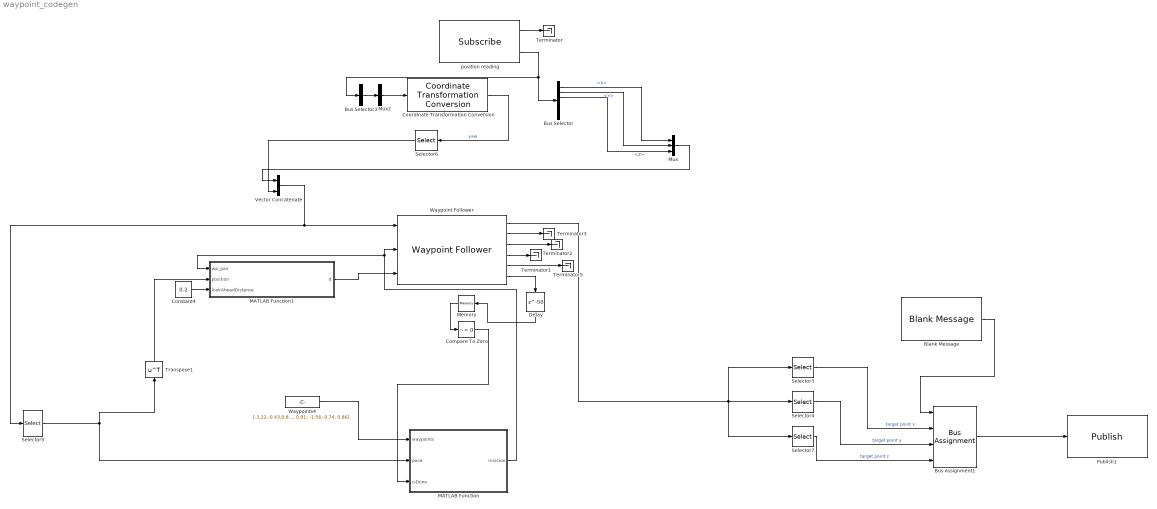
== matlab function waypoint_codegen/MATLAB Function1 ==
function d = decayDebug(wp_pair, position, lookAheadDistance)
%#codegen
prevWP = wp_pair(1,:);
nextWP = wp_pair(2,:);

distToStart = norm(position - prevWP);
distToEnd   = norm(position - nextWP);


x = min(distToStart, distToEnd);

if x <= lookAheadDistance
    d = x + 0.02;
else
    d = lookAheadDistance;



end






end

== matlab function waypoint_codegen/MATLAB Function ==
% MATLAB Function Block: generateMission
% Inputs:
%   waypoints   - Nx3 matrix of [x y z] waypoints
%   pose        - 1x3 current [x y z] position
%   isDone      - scalar (0 or 1), indicates waypoint reached
% Output:
%   mission     - 2x3 matrix: [previous_wp; target_wp]

function mission = generateMission(waypoints, pose, isDone)
%#codegen
% Preallocate output for codegen
mission = zeros(2,3,'like',waypoints);

persistent idx prevWP prevDone nWPs

% Initialize or reset on waypoint count change
if isempty(nWPs)
    nWPs = size(waypoints,1);
end
if isempty(idx) || nWPs ~= size(waypoints,1)
    idx      = 1;
    prevWP   = pose;       % start from initial pose
    prevDone = false;
    nWPs     = size(waypoints,1);
end

% Detect rising edge of isDone
if isDone && ~prevDone

    % Advance previous to current target
    prevWP = waypoints(idx, :);
    % Increment index, cap at end
    idx = min(idx + 1, nWPs);
end
% Store current isDone state
prevDone = isDone;

% Output previous and current target waypoints
mission(1, :) = prevWP;
mission(2, :) = waypoints(idx, :);
end

/*
 * waypoint_codegen.cpp
 *
 * Academic License - for use in teaching, academic research, and meeting
 * course requirements at degree granting institutions only.  Not for
 * government, commercial, or other organizational use.
 *
 * Code generation for model "waypoint_codegen".
 *
 * Model version              : 1.40
 * Simulink Coder version : 24.2 (R2024b) 21-Jun-2024
 * C++ source code generated on : Fri Sep  5 01:01:11 2025
 *
 * Target selection: ert.tlc
 * Note: GRT includes extra infrastructure and instrumentation for prototyping
 * Embedded hardware selection: Generic->Unspecified (assume 32-bit Generic)
 * Code generation objectives: Unspecified
 * Validation result: Not run
 */

#include "waypoint_codegen.h"
#include "rtwtypes.h"
#include <cstring>
#include <cmath>
#include "waypoint_codegen_private.h"
#include "cmath"
#include "rt_defines.h"

/* Block signals (default storage) */
B_waypoint_codegen_T waypoint_codegen_B;

/* Block states (default storage) */
DW_waypoint_codegen_T waypoint_codegen_DW;

/* Real-time model */
RT_MODEL_waypoint_codegen_T waypoint_codegen_M_{ };

RT_MODEL_waypoint_codegen_T *const waypoint_codegen_M{ &waypoint_codegen_M_ };

/* Forward declaration for local functions */
static real_T waypoint_codegen_norm(const real_T x[3]);
static real_T waypoint_codegen_norm_n(const real_T x[3]);
int32_T div_nzp_s32_floor(int32_T numerator, int32_T denominator)
{
  uint32_T absDenominator;
  uint32_T absNumerator;
  uint32_T tempAbsQuotient;
  boolean_T quotientNeedsNegation;
  absNumerator = numerator < 0 ? ~static_cast<uint32_T>(numerator) + 1U :
    static_cast<uint32_T>(numerator);
  absDenominator = denominator < 0 ? ~static_cast<uint32_T>(denominator) + 1U :
    static_cast<uint32_T>(denominator);
  quotientNeedsNegation = ((numerator < 0) != (denominator < 0));
  tempAbsQuotient = absNumerator / absDenominator;
  if (quotientNeedsNegation) {
    absNumerator %= absDenominator;
    if (absNumerator > 0U) {
      tempAbsQuotient++;
    }
  }

  return quotientNeedsNegation ? -static_cast<int32_T>(tempAbsQuotient) :
    static_cast<int32_T>(tempAbsQuotient);
}

real_T rt_atan2d_snf(real_T u0, real_T u1)
{
  real_T y;
  if (std::isnan(u0) || std::isnan(u1)) {
    y = (rtNaN);
  } else if (std::isinf(u0) && std::isinf(u1)) {
    int32_T tmp;
    int32_T tmp_0;
    if (u0 > 0.0) {
      tmp = 1;
    } else {
      tmp = -1;
    }

    if (u1 > 0.0) {
      tmp_0 = 1;
    } else {
      tmp_0 = -1;
    }

    y = std::atan2(static_cast<real_T>(tmp), static_cast<real_T>(tmp_0));
  } else if (u1 == 0.0) {
    if (u0 > 0.0) {
      y = RT_PI / 2.0;
    } else if (u0 < 0.0) {
      y = -(RT_PI / 2.0);
    } else {
      y = 0.0;
    }
  } else {
    y = std::atan2(u0, u1);
  }

  return y;
}

/* Function for MATLAB Function: '<Root>/MATLAB Function1' */
static real_T waypoint_codegen_norm(const real_T x[3])
{
  real_T absxk;
  real_T scale;
  real_T t;
  real_T y;
  scale = 3.3121686421112381E-170;
  absxk = std::abs(x[0]);
  if (absxk > 3.3121686421112381E-170) {
    y = 1.0;
    scale = absxk;
  } else {
    t = absxk / 3.3121686421112381E-170;
    y = t * t;
  }

  absxk = std::abs(x[1]);
  if (absxk > scale) {
    t = scale / absxk;
    y = y * t * t + 1.0;
    scale = absxk;
  } else {
    t = absxk / scale;
    y += t * t;
  }

  absxk = std::abs(x[2]);
  if (absxk > scale) {
    t = scale / absxk;
    y = y * t * t + 1.0;
    scale = absxk;
  } else {
    t = absxk / scale;
    y += t * t;
  }

  return scale * std::sqrt(y);
}

static real_T waypoint_codegen_norm_n(const real_T x[3])
{
  real_T absxk;
  real_T scale;
  real_T t;
  real_T y;
  scale = 3.3121686421112381E-170;

  /* Start for MATLABSystem: '<Root>/Waypoint Follower' */
  absxk = std::abs(x[0]);
  if (absxk > 3.3121686421112381E-170) {
    y = 1.0;
    scale = absxk;
  } else {
    t = absxk / 3.3121686421112381E-170;
    y = t * t;
  }

  /* Start for MATLABSystem: '<Root>/Waypoint Follower' */
  absxk = std::abs(x[1]);
  if (absxk > scale) {
    t = scale / absxk;
    y = y * t * t + 1.0;
    scale = absxk;
  } else {
    t = absxk / scale;
    y += t * t;
  }

  /* Start for MATLABSystem: '<Root>/Waypoint Follower' */
  absxk = std::abs(x[2]);
  if (absxk > scale) {
    t = scale / absxk;
    y = y * t * t + 1.0;
    scale = absxk;
  } else {
    t = absxk / scale;
    y += t * t;
  }

  return scale * std::sqrt(y);
}

/* Model step function */
void waypoint_codegen_step(void)
{
  int32_T b_exponent;
  int32_T b_exponent_0;
  int32_T b_k;
  int32_T i;
  int32_T tmp_size_idx_1;
  int32_T waypoints_data_tmp;
  int32_T waypoints_size_idx_0;
  int8_T tmp_data[2];
  uint8_T rtb_Delay;
  uint8_T status;
  boolean_T x[3];
  boolean_T distinctWptsIdx[2];
  boolean_T exitg1;
  boolean_T guard1;
  boolean_T guard2;
  boolean_T p;
  boolean_T rtb_Compare;

  /* Delay: '<Root>/Delay' */
  rtb_Delay = waypoint_codegen_DW.Delay_DSTATE[0];

  /* Outputs for Atomic SubSystem: '<Root>/position reading' */
  /* MATLABSystem: '<S6>/SourceBlock' */
  rtb_Compare = Sub_waypoint_codegen_1.getLatestMessage
    (&waypoint_codegen_B.rtb_SourceBlock_o2_m);

  /* Outputs for Enabled SubSystem: '<S6>/Enabled Subsystem' incorporates:
   *  EnablePort: '<S7>/Enable'
   */
  /* Start for MATLABSystem: '<S6>/SourceBlock' */
  if (rtb_Compare) {
    /* SignalConversion generated from: '<S7>/In1' */
    waypoint_codegen_B.In1 = waypoint_codegen_B.rtb_SourceBlock_o2_m;
  }

  /* End of Start for MATLABSystem: '<S6>/SourceBlock' */
  /* End of Outputs for SubSystem: '<S6>/Enabled Subsystem' */
  /* End of Outputs for SubSystem: '<Root>/position reading' */

  /* MATLABSystem: '<Root>/Coordinate Transformation Conversion' incorporates:
   *  SignalConversion generated from: '<Root>/Coordinate Transformation Conversion'
   */
  waypoint_codegen_B.b = 1.0 / std::sqrt
    (((waypoint_codegen_B.In1.Pose.Pose.Orientation.X *
       waypoint_codegen_B.In1.Pose.Pose.Orientation.X +
       waypoint_codegen_B.In1.Pose.Pose.Orientation.Y *
       waypoint_codegen_B.In1.Pose.Pose.Orientation.Y) +
      waypoint_codegen_B.In1.Pose.Pose.Orientation.Z *
      waypoint_codegen_B.In1.Pose.Pose.Orientation.Z) +
     waypoint_codegen_B.In1.Pose.Pose.Orientation.W *
     waypoint_codegen_B.In1.Pose.Pose.Orientation.W);
  waypoint_codegen_B.rtb_VectorConcatenate_idx_3 =
    waypoint_codegen_B.In1.Pose.Pose.Orientation.X * waypoint_codegen_B.b;
  waypoint_codegen_B.y_idx_1 = waypoint_codegen_B.In1.Pose.Pose.Orientation.Y *
    waypoint_codegen_B.b;
  waypoint_codegen_B.x = waypoint_codegen_B.In1.Pose.Pose.Orientation.Z *
    waypoint_codegen_B.b;
  waypoint_codegen_B.y_idx_3 = waypoint_codegen_B.In1.Pose.Pose.Orientation.W *
    waypoint_codegen_B.b;
  waypoint_codegen_B.d_tmp = waypoint_codegen_B.y_idx_1 *
    waypoint_codegen_B.y_idx_3 * 2.0 -
    waypoint_codegen_B.rtb_VectorConcatenate_idx_3 * waypoint_codegen_B.x * 2.0;
  if (waypoint_codegen_B.d_tmp > 1.0) {
    waypoint_codegen_B.d_tmp = 1.0;
  }

  if (waypoint_codegen_B.d_tmp < -1.0) {
    waypoint_codegen_B.d_tmp = -1.0;
  }

  if ((waypoint_codegen_B.d_tmp < 0.0) && (std::abs(waypoint_codegen_B.d_tmp +
        1.0) < 2.2204460492503131E-15)) {
    /* SignalConversion generated from: '<Root>/Vector Concatenate' */
    waypoint_codegen_B.rtb_VectorConcatenate_idx_3 = 0.0;
  } else if ((waypoint_codegen_B.d_tmp > 0.0) && (std::abs
              (waypoint_codegen_B.d_tmp - 1.0) < 2.2204460492503131E-15)) {
    /* SignalConversion generated from: '<Root>/Vector Concatenate' */
    waypoint_codegen_B.rtb_VectorConcatenate_idx_3 = 0.0;
  } else {
    /* SignalConversion generated from: '<Root>/Vector Concatenate' */
    waypoint_codegen_B.rtb_VectorConcatenate_idx_3 = rt_atan2d_snf
      (waypoint_codegen_B.rtb_VectorConcatenate_idx_3 *
       waypoint_codegen_B.y_idx_1 * 2.0 + waypoint_codegen_B.x *
       waypoint_codegen_B.y_idx_3 * 2.0,
       (waypoint_codegen_B.rtb_VectorConcatenate_idx_3 *
        waypoint_codegen_B.rtb_VectorConcatenate_idx_3 * 2.0 - 1.0) +
       waypoint_codegen_B.y_idx_3 * waypoint_codegen_B.y_idx_3 * 2.0);
  }

  /* End of MATLABSystem: '<Root>/Coordinate Transformation Conversion' */

  /* RelationalOperator: '<S2>/Compare' incorporates:
   *  Constant: '<S2>/Constant'
   *  Memory: '<Root>/Memory'
   */
  rtb_Compare = (waypoint_codegen_DW.Memory_PreviousInput != 0);

  /* MATLAB Function: '<Root>/MATLAB Function' incorporates:
   *  Constant: '<Root>/Waypoints4'
   *  SignalConversion generated from: '<Root>/Vector Concatenate'
   */
  if (!waypoint_codegen_DW.idx_not_empty) {
    waypoint_codegen_DW.idx_not_empty = true;
    waypoint_codegen_DW.prevWP.size[0] = 3;
    waypoint_codegen_DW.prevWP.size[1] = 1;
    waypoint_codegen_DW.prevWP.data[0] =
      waypoint_codegen_B.In1.Pose.Pose.Position.X;
    waypoint_codegen_DW.prevWP.data[1] =
      waypoint_codegen_B.In1.Pose.Pose.Position.Y;
    waypoint_codegen_DW.prevWP.data[2] =
      waypoint_codegen_B.In1.Pose.Pose.Position.Z;
  }

  if (rtb_Compare && (!waypoint_codegen_DW.prevDone)) {
    waypoint_codegen_DW.prevWP.size[0] = 1;
    waypoint_codegen_DW.prevWP.size[1] = 3;
    waypoint_codegen_DW.prevWP.data[0] =
      waypoint_codegen_ConstP.Waypoints4_Value[static_cast<int32_T>
      (waypoint_codegen_DW.idx) - 1];
    waypoint_codegen_DW.prevWP.data[waypoint_codegen_DW.prevWP.size[0]] =
      waypoint_codegen_ConstP.Waypoints4_Value[static_cast<int32_T>
      (waypoint_codegen_DW.idx) + 4];
    waypoint_codegen_DW.prevWP.data[waypoint_codegen_DW.prevWP.size[0] << 1] =
      waypoint_codegen_ConstP.Waypoints4_Value[static_cast<int32_T>
      (waypoint_codegen_DW.idx) + 9];
    waypoint_codegen_DW.idx = std::fmin(waypoint_codegen_DW.idx + 1.0, 5.0);
  }

  waypoint_codegen_DW.prevDone = rtb_Compare;
  waypoint_codegen_B.mission[0] = waypoint_codegen_DW.prevWP.data[0];
  waypoint_codegen_B.y_idx_1 = waypoint_codegen_ConstP.Waypoints4_Value[
    static_cast<int32_T>(waypoint_codegen_DW.idx) - 1];
  waypoint_codegen_B.mission[1] = waypoint_codegen_B.y_idx_1;

  /* MATLAB Function: '<Root>/MATLAB Function1' incorporates:
   *  MATLAB Function: '<Root>/MATLAB Function'
   *  Math: '<Root>/Transpose1'
   *  SignalConversion generated from: '<Root>/Vector Concatenate'
   */
  waypoint_codegen_B.virtualWaypoint[0] =
    waypoint_codegen_B.In1.Pose.Pose.Position.X -
    waypoint_codegen_DW.prevWP.data[0];
  waypoint_codegen_B.rtb_VectorConcatenate_c[0] =
    waypoint_codegen_B.In1.Pose.Pose.Position.X - waypoint_codegen_B.y_idx_1;

  /* MATLAB Function: '<Root>/MATLAB Function' incorporates:
   *  Constant: '<Root>/Waypoints4'
   */
  waypoint_codegen_B.mission[2] = waypoint_codegen_DW.prevWP.data[1];
  waypoint_codegen_B.y_idx_1 = waypoint_codegen_ConstP.Waypoints4_Value[
    static_cast<int32_T>(waypoint_codegen_DW.idx) + 4];
  waypoint_codegen_B.mission[3] = waypoint_codegen_B.y_idx_1;

  /* MATLAB Function: '<Root>/MATLAB Function1' incorporates:
   *  MATLAB Function: '<Root>/MATLAB Function'
   *  Math: '<Root>/Transpose1'
   *  SignalConversion generated from: '<Root>/Vector Concatenate'
   */
  waypoint_codegen_B.virtualWaypoint[1] =
    waypoint_codegen_B.In1.Pose.Pose.Position.Y -
    waypoint_codegen_DW.prevWP.data[1];
  waypoint_codegen_B.rtb_VectorConcatenate_c[1] =
    waypoint_codegen_B.In1.Pose.Pose.Position.Y - waypoint_codegen_B.y_idx_1;

  /* MATLAB Function: '<Root>/MATLAB Function' incorporates:
   *  Constant: '<Root>/Waypoints4'
   */
  waypoint_codegen_B.mission[4] = waypoint_codegen_DW.prevWP.data[2];
  waypoint_codegen_B.y_idx_1 = waypoint_codegen_ConstP.Waypoints4_Value[
    static_cast<int32_T>(waypoint_codegen_DW.idx) + 9];
  waypoint_codegen_B.mission[5] = waypoint_codegen_B.y_idx_1;

  /* MATLAB Function: '<Root>/MATLAB Function1' incorporates:
   *  Constant: '<Root>/Constant4'
   *  MATLAB Function: '<Root>/MATLAB Function'
   *  Math: '<Root>/Transpose1'
   *  SignalConversion generated from: '<Root>/Vector Concatenate'
   */
  waypoint_codegen_B.virtualWaypoint[2] =
    waypoint_codegen_B.In1.Pose.Pose.Position.Z -
    waypoint_codegen_DW.prevWP.data[2];
  waypoint_codegen_B.rtb_VectorConcatenate_c[2] =
    waypoint_codegen_B.In1.Pose.Pose.Position.Z - waypoint_codegen_B.y_idx_1;
  waypoint_codegen_B.x = std::fmin(waypoint_codegen_norm
    (waypoint_codegen_B.virtualWaypoint), waypoint_codegen_norm
    (waypoint_codegen_B.rtb_VectorConcatenate_c));
  if (waypoint_codegen_B.x <= 0.2) {
    waypoint_codegen_B.x += 0.02;
  } else {
    waypoint_codegen_B.x = 0.2;
  }

  /* MATLABSystem: '<Root>/Waypoint Follower' incorporates:
   *  MATLAB Function: '<Root>/MATLAB Function'
   */
  waypoint_codegen_DW.obj.LookaheadDistFlag = 0U;
  if (waypoint_codegen_B.x < 0.01) {
    waypoint_codegen_B.x = 0.01;
    waypoint_codegen_DW.obj.LookaheadDistFlag = 1U;
  }

  waypoint_codegen_DW.obj.InitialPose[0] = 0.0;
  waypoint_codegen_DW.obj.InitialPose[1] = 0.0;
  waypoint_codegen_DW.obj.InitialPose[2] = 0.0;
  waypoint_codegen_DW.obj.InitialPose[3] = 0.0;
  waypoint_codegen_DW.obj.NumWaypoints = 2.0;
  rtb_Compare = false;
  p = true;
  b_k = 0;
  exitg1 = false;
  while ((!exitg1) && (b_k <= 5)) {
    i = b_k % 2 + (div_nzp_s32_floor(b_k, 2) << 1);
    if (!(waypoint_codegen_DW.obj.WaypointsInternal[i] ==
          waypoint_codegen_B.mission[i])) {
      p = false;
      exitg1 = true;
    } else {
      b_k++;
    }
  }

  if (p) {
    rtb_Compare = true;
  }

  if (!rtb_Compare) {
    for (i = 0; i < 6; i++) {
      waypoint_codegen_DW.obj.WaypointsInternal[i] =
        waypoint_codegen_B.mission[i];
    }

    waypoint_codegen_DW.obj.WaypointIndex = 1.0;
  }

  distinctWptsIdx[1] = true;
  x[0] = (waypoint_codegen_DW.prevWP.data[0] != waypoint_codegen_B.mission[1]);
  x[1] = (waypoint_codegen_DW.prevWP.data[1] != waypoint_codegen_B.mission[3]);
  x[2] = (waypoint_codegen_DW.prevWP.data[2] != waypoint_codegen_B.y_idx_1);
  distinctWptsIdx[0] = false;
  b_k = 0;
  exitg1 = false;
  while ((!exitg1) && (b_k < 3)) {
    if (x[b_k]) {
      distinctWptsIdx[0] = true;
      exitg1 = true;
    } else {
      b_k++;
    }
  }

  b_k = 0;
  for (i = 0; i < 2; i++) {
    /* MATLABSystem: '<Root>/Waypoint Follower' */
    if (distinctWptsIdx[i]) {
      b_k++;
    }
  }

  tmp_size_idx_1 = b_k;
  b_k = 0;
  for (i = 0; i < 2; i++) {
    /* MATLABSystem: '<Root>/Waypoint Follower' */
    if (distinctWptsIdx[i]) {
      /* Start for MATLABSystem: '<Root>/Waypoint Follower' */
      tmp_data[b_k] = static_cast<int8_T>(i);
      b_k++;
    }
  }

  /* MATLABSystem: '<Root>/Waypoint Follower' incorporates:
   *  SignalConversion generated from: '<Root>/Vector Concatenate'
   */
  for (i = 0; i < 3; i++) {
    for (b_k = 0; b_k < tmp_size_idx_1; b_k++) {
      waypoint_codegen_B.b_waypointsIn_data[b_k + tmp_size_idx_1 * i] =
        waypoint_codegen_B.mission[(i << 1) + tmp_data[b_k]];
    }
  }

  waypoint_codegen_DW.obj.LookaheadDistance = waypoint_codegen_B.x;
  if (tmp_size_idx_1 == 0) {
    waypoint_codegen_B.y_idx_1 = waypoint_codegen_B.In1.Pose.Pose.Position.X;
    waypoint_codegen_B.y_idx_3 = waypoint_codegen_B.In1.Pose.Pose.Position.Y;
    waypoint_codegen_B.rtb_WaypointFollower_o1_idx_2_t =
      waypoint_codegen_B.In1.Pose.Pose.Position.Z;
    status = 1U;
  } else {
    guard1 = false;
    if (tmp_size_idx_1 == 1) {
      if (waypoint_codegen_DW.obj.StartFlag) {
        waypoint_codegen_DW.obj.InitialPose[0] =
          waypoint_codegen_B.In1.Pose.Pose.Position.X;
        waypoint_codegen_DW.obj.InitialPose[1] =
          waypoint_codegen_B.In1.Pose.Pose.Position.Y;
        waypoint_codegen_DW.obj.InitialPose[2] =
          waypoint_codegen_B.In1.Pose.Pose.Position.Z;
        waypoint_codegen_DW.obj.InitialPose[3] =
          waypoint_codegen_B.rtb_VectorConcatenate_idx_3;
      }

      waypoint_codegen_B.virtualWaypoint[0] =
        waypoint_codegen_B.b_waypointsIn_data[0] -
        waypoint_codegen_B.In1.Pose.Pose.Position.X;
      waypoint_codegen_B.virtualWaypoint[1] =
        waypoint_codegen_B.b_waypointsIn_data[1] -
        waypoint_codegen_B.In1.Pose.Pose.Position.Y;
      waypoint_codegen_B.virtualWaypoint[2] =
        waypoint_codegen_B.b_waypointsIn_data[2] -
        waypoint_codegen_B.In1.Pose.Pose.Position.Z;
      if (waypoint_codegen_norm_n(waypoint_codegen_B.virtualWaypoint) <
          1.4901161193847656E-8) {
        waypoint_codegen_B.y_idx_1 = waypoint_codegen_B.In1.Pose.Pose.Position.X;
        waypoint_codegen_B.y_idx_3 = waypoint_codegen_B.In1.Pose.Pose.Position.Y;
        waypoint_codegen_B.rtb_WaypointFollower_o1_idx_2_t =
          waypoint_codegen_B.In1.Pose.Pose.Position.Z;
        status = 1U;
        waypoint_codegen_DW.obj.StartFlag = false;
      } else {
        waypoint_codegen_DW.obj.StartFlag = false;
        waypoint_codegen_DW.obj.NumWaypoints = 2.0;
        waypoints_size_idx_0 = tmp_size_idx_1 + 1;
        for (i = 0; i < 3; i++) {
          waypoints_data_tmp = (tmp_size_idx_1 + 1) * i;
          waypoint_codegen_B.mission[waypoints_data_tmp] =
            waypoint_codegen_DW.obj.InitialPose[i];
          for (b_k = 0; b_k < tmp_size_idx_1; b_k++) {
            waypoint_codegen_B.mission[(b_k + waypoints_data_tmp) + 1] =
              waypoint_codegen_B.b_waypointsIn_data[tmp_size_idx_1 * i + b_k];
          }
        }

        guard1 = true;
      }
    } else {
      waypoints_size_idx_0 = tmp_size_idx_1;
      b_k = tmp_size_idx_1 * 3;
      if (b_k - 1 >= 0) {
        std::memcpy(&waypoint_codegen_B.mission[0],
                    &waypoint_codegen_B.b_waypointsIn_data[0],
                    static_cast<uint32_T>(b_k) * sizeof(real_T));
      }

      guard1 = true;
    }

    if (guard1) {
      rtb_Compare = false;
      if (waypoint_codegen_DW.obj.WaypointIndex == 2.0) {
        rtb_Compare = true;
      }

      if (rtb_Compare) {
        waypoint_codegen_DW.obj.LastWaypointFlag = true;
        waypoint_codegen_DW.obj.WaypointIndex--;
      }

      waypoint_codegen_B.rtb_VectorConcatenate_idx_3 =
        waypoint_codegen_B.mission[static_cast<int32_T>
        (waypoint_codegen_DW.obj.WaypointIndex) - 1];
      waypoint_codegen_B.y_idx_1 = waypoint_codegen_B.mission
        [static_cast<int32_T>(waypoint_codegen_DW.obj.WaypointIndex + 1.0) - 1];
      waypoint_codegen_B.y = waypoint_codegen_B.In1.Pose.Pose.Position.X -
        waypoint_codegen_B.y_idx_1;
      waypoint_codegen_B.virtualWaypoint[0] = waypoint_codegen_B.y;
      waypoint_codegen_B.x = waypoint_codegen_B.mission[(static_cast<int32_T>
        (waypoint_codegen_DW.obj.WaypointIndex) + waypoints_size_idx_0) - 1];
      waypoint_codegen_B.y_idx_3 = waypoint_codegen_B.mission
        [(static_cast<int32_T>(waypoint_codegen_DW.obj.WaypointIndex + 1.0) +
          waypoints_size_idx_0) - 1];
      waypoint_codegen_B.virtualWaypoint[1] =
        waypoint_codegen_B.In1.Pose.Pose.Position.Y - waypoint_codegen_B.y_idx_3;
      waypoint_codegen_B.d_tmp = waypoint_codegen_B.mission
        [((waypoints_size_idx_0 << 1) + static_cast<int32_T>
          (waypoint_codegen_DW.obj.WaypointIndex)) - 1];
      waypoint_codegen_B.rtb_WaypointFollower_o1_idx_2_t =
        waypoint_codegen_B.mission[(static_cast<int32_T>
        (waypoint_codegen_DW.obj.WaypointIndex + 1.0) + (waypoints_size_idx_0 <<
        1)) - 1];
      waypoint_codegen_B.b = waypoint_codegen_B.In1.Pose.Pose.Position.Z -
        waypoint_codegen_B.rtb_WaypointFollower_o1_idx_2_t;
      waypoint_codegen_B.virtualWaypoint[2] = waypoint_codegen_B.b;
      waypoint_codegen_B.dist = waypoint_codegen_norm_n
        (waypoint_codegen_B.virtualWaypoint);
      guard2 = false;
      if (waypoint_codegen_B.dist <= 0.03) {
        guard2 = true;
      } else {
        waypoint_codegen_B.unitVectorUtoV_tmp[0] = waypoint_codegen_B.y_idx_1 -
          waypoint_codegen_B.rtb_VectorConcatenate_idx_3;
        waypoint_codegen_B.unitVectorUtoV_tmp[1] = waypoint_codegen_B.y_idx_3 -
          waypoint_codegen_B.x;
        waypoint_codegen_B.unitVectorUtoV_tmp[2] =
          waypoint_codegen_B.rtb_WaypointFollower_o1_idx_2_t -
          waypoint_codegen_B.d_tmp;
        waypoint_codegen_B.virtualWaypoint_k = waypoint_codegen_norm_n
          (waypoint_codegen_B.unitVectorUtoV_tmp);
        waypoint_codegen_B.b = (waypoint_codegen_B.y / waypoint_codegen_B.dist *
          (waypoint_codegen_B.unitVectorUtoV_tmp[0] /
           waypoint_codegen_B.virtualWaypoint_k) +
          waypoint_codegen_B.unitVectorUtoV_tmp[1] /
          waypoint_codegen_B.virtualWaypoint_k *
          (waypoint_codegen_B.virtualWaypoint[1] / waypoint_codegen_B.dist)) +
          waypoint_codegen_B.b / waypoint_codegen_B.dist *
          (waypoint_codegen_B.unitVectorUtoV_tmp[2] /
           waypoint_codegen_B.virtualWaypoint_k);
        if (std::isnan(waypoint_codegen_B.b) || (waypoint_codegen_B.b < 0.0)) {
        } else {
          guard2 = true;
        }
      }

      if (guard2) {
        waypoint_codegen_DW.obj.WaypointIndex++;
        rtb_Compare = false;
        if (waypoint_codegen_DW.obj.WaypointIndex == 2.0) {
          rtb_Compare = true;
        }

        if (rtb_Compare) {
          waypoint_codegen_DW.obj.LastWaypointFlag = true;
          waypoint_codegen_DW.obj.WaypointIndex--;
        }

        waypoint_codegen_B.rtb_VectorConcatenate_idx_3 =
          waypoint_codegen_B.mission[static_cast<int32_T>
          (waypoint_codegen_DW.obj.WaypointIndex) - 1];
        waypoint_codegen_B.y_idx_1 = waypoint_codegen_B.mission
          [static_cast<int32_T>(waypoint_codegen_DW.obj.WaypointIndex + 1.0) - 1];
        waypoint_codegen_B.x = waypoint_codegen_B.mission[(static_cast<int32_T>
          (waypoint_codegen_DW.obj.WaypointIndex) + waypoints_size_idx_0) - 1];
        waypoint_codegen_B.y_idx_3 = waypoint_codegen_B.mission
          [(static_cast<int32_T>(waypoint_codegen_DW.obj.WaypointIndex + 1.0) +
            waypoints_size_idx_0) - 1];
        waypoint_codegen_B.d_tmp = waypoint_codegen_B.mission
          [((waypoints_size_idx_0 << 1) + static_cast<int32_T>
            (waypoint_codegen_DW.obj.WaypointIndex)) - 1];
        waypoint_codegen_B.rtb_WaypointFollower_o1_idx_2_t =
          waypoint_codegen_B.mission[(static_cast<int32_T>
          (waypoint_codegen_DW.obj.WaypointIndex + 1.0) + (waypoints_size_idx_0 <<
          1)) - 1];
      }

      waypoint_codegen_B.dist = waypoint_codegen_B.In1.Pose.Pose.Position.X -
        waypoint_codegen_B.rtb_VectorConcatenate_idx_3;
      waypoint_codegen_B.virtualWaypoint[0] = waypoint_codegen_B.dist;
      waypoint_codegen_B.b = waypoint_codegen_B.y_idx_1 -
        waypoint_codegen_B.rtb_VectorConcatenate_idx_3;
      waypoint_codegen_B.unitVectorUtoV_tmp[0] = waypoint_codegen_B.b;
      waypoint_codegen_B.virtualWaypoint_k = waypoint_codegen_B.dist *
        waypoint_codegen_B.b;
      waypoint_codegen_B.y = waypoint_codegen_B.b * waypoint_codegen_B.b;
      waypoint_codegen_B.dist = waypoint_codegen_B.In1.Pose.Pose.Position.Y -
        waypoint_codegen_B.x;
      waypoint_codegen_B.virtualWaypoint[1] = waypoint_codegen_B.dist;
      waypoint_codegen_B.b = waypoint_codegen_B.y_idx_3 - waypoint_codegen_B.x;
      waypoint_codegen_B.unitVectorUtoV_tmp[1] = waypoint_codegen_B.b;
      waypoint_codegen_B.virtualWaypoint_k += waypoint_codegen_B.dist *
        waypoint_codegen_B.b;
      waypoint_codegen_B.y += waypoint_codegen_B.b * waypoint_codegen_B.b;
      waypoint_codegen_B.dist = waypoint_codegen_B.In1.Pose.Pose.Position.Z -
        waypoint_codegen_B.d_tmp;
      waypoint_codegen_B.virtualWaypoint[2] = waypoint_codegen_B.dist;
      waypoint_codegen_B.b = waypoint_codegen_B.rtb_WaypointFollower_o1_idx_2_t
        - waypoint_codegen_B.d_tmp;
      waypoint_codegen_B.y += waypoint_codegen_B.b * waypoint_codegen_B.b;
      waypoint_codegen_B.virtualWaypoint_k = (waypoint_codegen_B.dist *
        waypoint_codegen_B.b + waypoint_codegen_B.virtualWaypoint_k) /
        waypoint_codegen_B.y;
      if (waypoint_codegen_B.virtualWaypoint_k < 0.0) {
        waypoint_codegen_B.dist = waypoint_codegen_norm_n
          (waypoint_codegen_B.virtualWaypoint);
      } else if (waypoint_codegen_B.virtualWaypoint_k > 1.0) {
        waypoint_codegen_B.virtualWaypoint[0] =
          waypoint_codegen_B.In1.Pose.Pose.Position.X -
          waypoint_codegen_B.y_idx_1;
        waypoint_codegen_B.virtualWaypoint[1] =
          waypoint_codegen_B.In1.Pose.Pose.Position.Y -
          waypoint_codegen_B.y_idx_3;
        waypoint_codegen_B.virtualWaypoint[2] =
          waypoint_codegen_B.In1.Pose.Pose.Position.Z -
          waypoint_codegen_B.rtb_WaypointFollower_o1_idx_2_t;
        waypoint_codegen_B.dist = waypoint_codegen_norm_n
          (waypoint_codegen_B.virtualWaypoint);
      } else {
        waypoint_codegen_B.virtualWaypoint[0] =
          waypoint_codegen_B.In1.Pose.Pose.Position.X -
          (waypoint_codegen_B.virtualWaypoint_k *
           waypoint_codegen_B.unitVectorUtoV_tmp[0] +
           waypoint_codegen_B.rtb_VectorConcatenate_idx_3);
        waypoint_codegen_B.virtualWaypoint[1] =
          waypoint_codegen_B.In1.Pose.Pose.Position.Y -
          (waypoint_codegen_B.virtualWaypoint_k *
           waypoint_codegen_B.unitVectorUtoV_tmp[1] + waypoint_codegen_B.x);
        waypoint_codegen_B.virtualWaypoint[2] =
          waypoint_codegen_B.In1.Pose.Pose.Position.Z -
          (waypoint_codegen_B.virtualWaypoint_k * waypoint_codegen_B.b +
           waypoint_codegen_B.d_tmp);
        waypoint_codegen_B.dist = waypoint_codegen_norm_n
          (waypoint_codegen_B.virtualWaypoint);
      }

      if (waypoint_codegen_DW.obj.LastWaypointFlag) {
        waypoint_codegen_B.virtualWaypoint[0] =
          waypoint_codegen_B.In1.Pose.Pose.Position.X -
          (waypoint_codegen_B.virtualWaypoint_k *
           waypoint_codegen_B.unitVectorUtoV_tmp[0] +
           waypoint_codegen_B.rtb_VectorConcatenate_idx_3);
        waypoint_codegen_B.virtualWaypoint[1] =
          waypoint_codegen_B.In1.Pose.Pose.Position.Y -
          (waypoint_codegen_B.virtualWaypoint_k *
           waypoint_codegen_B.unitVectorUtoV_tmp[1] + waypoint_codegen_B.x);
        waypoint_codegen_B.virtualWaypoint[2] =
          waypoint_codegen_B.In1.Pose.Pose.Position.Z -
          (waypoint_codegen_B.virtualWaypoint_k * waypoint_codegen_B.b +
           waypoint_codegen_B.d_tmp);
        waypoint_codegen_B.dist = waypoint_codegen_norm_n
          (waypoint_codegen_B.virtualWaypoint);
      }

      waypoint_codegen_B.absx_tmp = std::abs(waypoint_codegen_B.dist);
      if (std::isinf(waypoint_codegen_B.absx_tmp) || std::isnan
          (waypoint_codegen_B.absx_tmp)) {
        waypoint_codegen_B.virtualWaypoint_k = (rtNaN);
        waypoint_codegen_B.absx_tmp = (rtNaN);
      } else if (waypoint_codegen_B.absx_tmp < 4.4501477170144028E-308) {
        waypoint_codegen_B.virtualWaypoint_k = 4.94065645841247E-324;
        waypoint_codegen_B.absx_tmp = 4.94065645841247E-324;
      } else {
        std::frexp(waypoint_codegen_B.absx_tmp, &b_exponent);
        waypoint_codegen_B.virtualWaypoint_k = std::ldexp(1.0, b_exponent - 53);
        std::frexp(waypoint_codegen_B.absx_tmp, &b_exponent_0);
        waypoint_codegen_B.absx_tmp = std::ldexp(1.0, b_exponent_0 - 53);
      }

      if (waypoint_codegen_DW.obj.LookaheadDistance <= std::fmax(std::sqrt
           (waypoint_codegen_B.virtualWaypoint_k), 5.0 *
           waypoint_codegen_B.absx_tmp) + waypoint_codegen_B.dist) {
        waypoint_codegen_DW.obj.LookaheadDistance =
          waypoint_codegen_DW.obj.LookaheadFactor * waypoint_codegen_B.dist;
      }

      if (!waypoint_codegen_DW.obj.LastWaypointFlag) {
        waypoint_codegen_B.virtualWaypoint[0] =
          waypoint_codegen_B.unitVectorUtoV_tmp[0];
        waypoint_codegen_B.unitVectorUtoV_tmp[0] =
          waypoint_codegen_B.rtb_VectorConcatenate_idx_3 -
          waypoint_codegen_B.In1.Pose.Pose.Position.X;
        waypoint_codegen_B.virtualWaypoint[1] =
          waypoint_codegen_B.unitVectorUtoV_tmp[1];
        waypoint_codegen_B.unitVectorUtoV_tmp[1] = waypoint_codegen_B.x -
          waypoint_codegen_B.In1.Pose.Pose.Position.Y;
        waypoint_codegen_B.unitVectorUtoV_tmp[2] = waypoint_codegen_B.d_tmp -
          waypoint_codegen_B.In1.Pose.Pose.Position.Z;
        waypoint_codegen_B.b = ((waypoint_codegen_B.virtualWaypoint[0] *
          waypoint_codegen_B.unitVectorUtoV_tmp[0] +
          waypoint_codegen_B.virtualWaypoint[1] *
          waypoint_codegen_B.unitVectorUtoV_tmp[1]) + waypoint_codegen_B.b *
          waypoint_codegen_B.unitVectorUtoV_tmp[2]) * 2.0;
        waypoint_codegen_B.dist = std::sqrt(waypoint_codegen_B.b *
          waypoint_codegen_B.b - (((waypoint_codegen_B.unitVectorUtoV_tmp[0] *
          waypoint_codegen_B.unitVectorUtoV_tmp[0] +
          waypoint_codegen_B.unitVectorUtoV_tmp[1] *
          waypoint_codegen_B.unitVectorUtoV_tmp[1]) +
          waypoint_codegen_B.unitVectorUtoV_tmp[2] *
          waypoint_codegen_B.unitVectorUtoV_tmp[2]) -
          waypoint_codegen_DW.obj.LookaheadDistance *
          waypoint_codegen_DW.obj.LookaheadDistance) * (4.0 *
          waypoint_codegen_B.y));
        waypoint_codegen_B.y = std::fmax((-waypoint_codegen_B.b +
          waypoint_codegen_B.dist) / 2.0 / waypoint_codegen_B.y,
          (-waypoint_codegen_B.b - waypoint_codegen_B.dist) / 2.0 /
          waypoint_codegen_B.y);
        waypoint_codegen_B.y_idx_1 = (1.0 - waypoint_codegen_B.y) *
          waypoint_codegen_B.rtb_VectorConcatenate_idx_3 + waypoint_codegen_B.y *
          waypoint_codegen_B.y_idx_1;
        waypoint_codegen_B.y_idx_3 = (1.0 - waypoint_codegen_B.y) *
          waypoint_codegen_B.x + waypoint_codegen_B.y *
          waypoint_codegen_B.y_idx_3;
        waypoint_codegen_B.rtb_WaypointFollower_o1_idx_2_t = (1.0 -
          waypoint_codegen_B.y) * waypoint_codegen_B.d_tmp +
          waypoint_codegen_B.y *
          waypoint_codegen_B.rtb_WaypointFollower_o1_idx_2_t;
      }

      status = 0U;
      rtb_Compare = false;
      if (waypoint_codegen_DW.obj.LastWaypointFlag) {
        rtb_Compare = true;
      }

      if (rtb_Compare) {
        status = 1U;
      }

      waypoint_codegen_DW.obj.LastWaypointFlag = false;
    }
  }

  /* BusAssignment: '<Root>/Bus Assignment1' incorporates:
   *  MATLABSystem: '<Root>/Waypoint Follower'
   */
  waypoint_codegen_B.BusAssignment1.X = waypoint_codegen_B.y_idx_1;
  waypoint_codegen_B.BusAssignment1.Y = waypoint_codegen_B.y_idx_3;
  waypoint_codegen_B.BusAssignment1.Z =
    waypoint_codegen_B.rtb_WaypointFollower_o1_idx_2_t;

  /* Outputs for Atomic SubSystem: '<Root>/Publish1' */
  /* MATLABSystem: '<S5>/SinkBlock' */
  Pub_waypoint_codegen_253.publish(&waypoint_codegen_B.BusAssignment1);

  /* End of Outputs for SubSystem: '<Root>/Publish1' */

  /* Update for Delay: '<Root>/Delay' incorporates:
   *  MATLABSystem: '<Root>/Waypoint Follower'
   * */
  for (b_exponent = 0; b_exponent < 49; b_exponent++) {
    waypoint_codegen_DW.Delay_DSTATE[b_exponent] =
      waypoint_codegen_DW.Delay_DSTATE[b_exponent + 1];
  }

  waypoint_codegen_DW.Delay_DSTATE[49] = status;

  /* End of Update for Delay: '<Root>/Delay' */

  /* Update for Memory: '<Root>/Memory' */
  waypoint_codegen_DW.Memory_PreviousInput = rtb_Delay;
}
